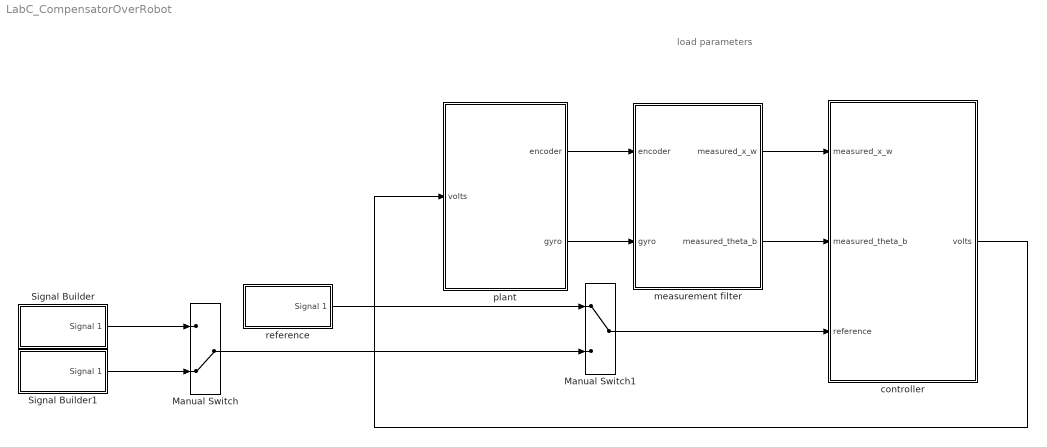
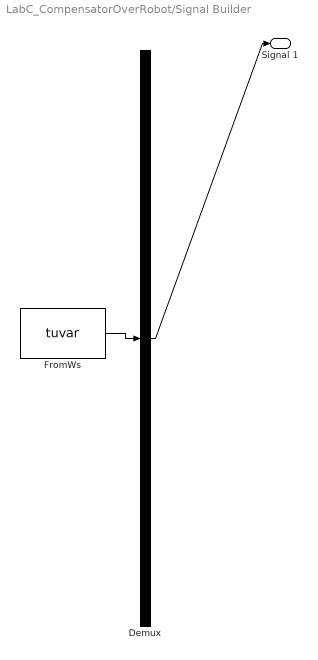
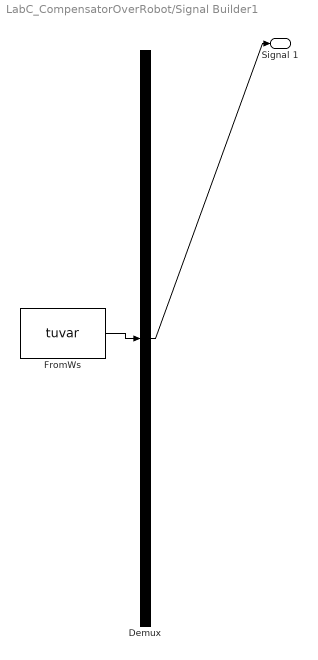
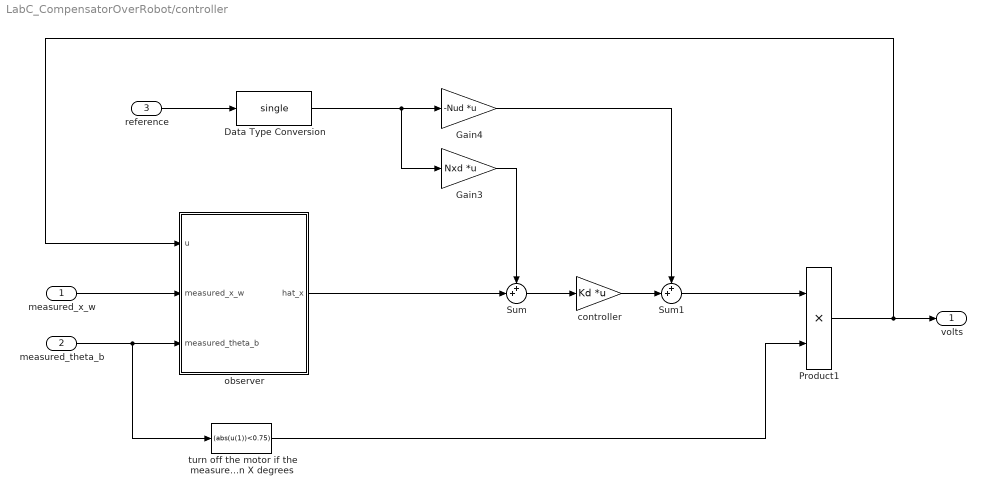
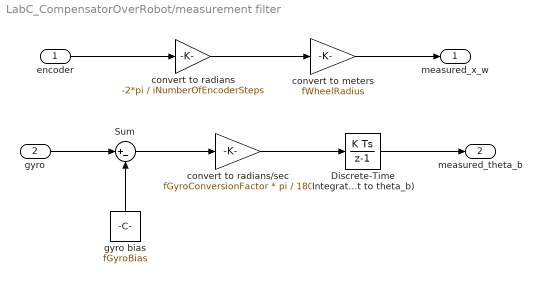
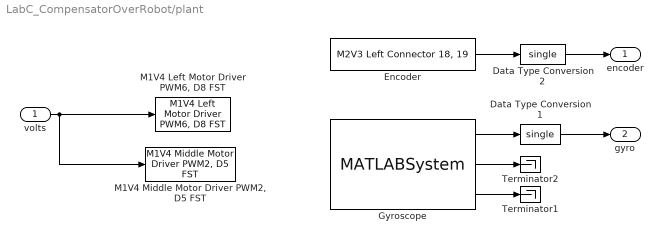
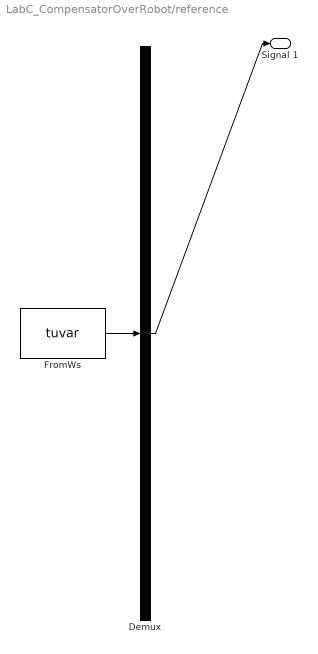
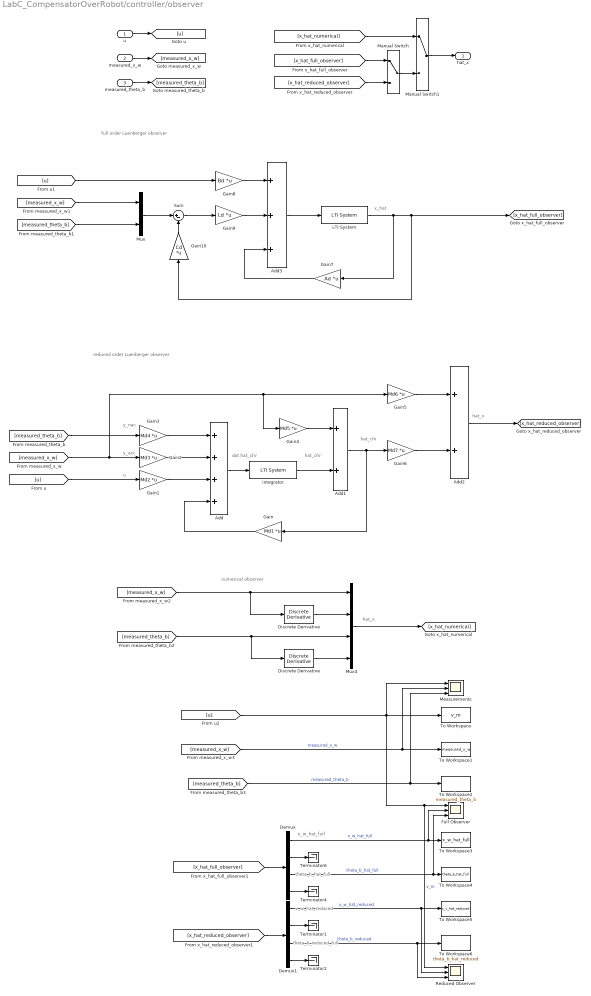
/*
 * Academic License - for use in teaching, academic research, and meeting
 * course requirements at degree granting institutions only.  Not for
 * government, commercial, or other organizational use.
 *
 * File: LabC_CompensatorOverRobot.c
 *
 * Code generated for Simulink model 'LabC_CompensatorOverRobot'.
 *
 * Model version                  : 1.720
 * Simulink Coder version         : 9.2 (R2019b) 18-Jul-2019
 * C/C++ source code generated on : Wed Dec  4 23:57:09 2019
 *
 * Target selection: ert.tlc
 * Embedded hardware selection: Atmel->AVR
 * Code generation objectives: Unspecified
 * Validation result: Not run
 */

#include "LabC_CompensatorOverRobot.h"
#include "LabC_CompensatorOverRobot_private.h"
#include "LabC_CompensatorOverRobot_dt.h"

/* Block signals (default storage) */
BlockIO_LabC_CompensatorOverRob LabC_CompensatorOverRobot_B;

/* Block states (default storage) */
D_Work_LabC_CompensatorOverRobo LabC_CompensatorOverRobot_DWork;

/* Real-time model */
RT_MODEL_LabC_CompensatorOverRo LabC_CompensatorOverRobot_M_;
RT_MODEL_LabC_CompensatorOverRo *const LabC_CompensatorOverRobot_M =
  &LabC_CompensatorOverRobot_M_;

/* Forward declaration for local functions */
static void matlabCodegenHandle_matlabCod_o(Encoder_arduino_LabC_Compensato *obj);
static void matlabCodegenHandle_matlabCodeg(soMPU6050Gyro_LabC_CompensatorO *obj);
static void matlabCodegenHandle_matlabC_o21(codertarget_arduinobase_blocks_ *obj);
static void LabC_Compens_SystemCore_release(codertarget_arduinobase_interna *obj);
static void LabC_Compe_SystemCore_delete_o2(codertarget_arduinobase_interna *obj);
static void matlabCodegenHandle_matlabCo_o2(codertarget_arduinobase_interna *obj);
static void arduino_PWMOutput_set_pinNumber(codertarget_arduinobase_interna *obj,
  e_codertarget_arduinobase_inter *iobj_0);
static void arduino_PWMOutput_set_pinNumb_o(codertarget_arduinobase_interna *obj,
  e_codertarget_arduinobase_inter *iobj_0);
static void matlabCodegenHandle_matlabCod_o(Encoder_arduino_LabC_Compensato *obj)
{
  if (!obj->matlabCodegenIsDeleted) {
    obj->matlabCodegenIsDeleted = true;
  }
}

static void matlabCodegenHandle_matlabCodeg(soMPU6050Gyro_LabC_CompensatorO *obj)
{
  if (!obj->matlabCodegenIsDeleted) {
    obj->matlabCodegenIsDeleted = true;
  }
}

static void matlabCodegenHandle_matlabC_o21(codertarget_arduinobase_blocks_ *obj)
{
  if (!obj->matlabCodegenIsDeleted) {
    obj->matlabCodegenIsDeleted = true;
  }
}

static void LabC_Compens_SystemCore_release(codertarget_arduinobase_interna *obj)
{
  if ((obj->isInitialized == 1L) && obj->isSetupComplete) {
    obj->MW_PWM_HANDLE = MW_PWM_GetHandle(obj->PinPWM);
    MW_PWM_SetDutyCycle(obj->MW_PWM_HANDLE, 0);
    obj->MW_PWM_HANDLE = MW_PWM_GetHandle(obj->PinPWM);
    MW_PWM_Close(obj->MW_PWM_HANDLE);
  }
}

static void LabC_Compe_SystemCore_delete_o2(codertarget_arduinobase_interna *obj)
{
  LabC_Compens_SystemCore_release(obj);
}

static void matlabCodegenHandle_matlabCo_o2(codertarget_arduinobase_interna *obj)
{
  if (!obj->matlabCodegenIsDeleted) {
    obj->matlabCodegenIsDeleted = true;
    LabC_Compe_SystemCore_delete_o2(obj);
  }
}

static void arduino_PWMOutput_set_pinNumber(codertarget_arduinobase_interna *obj,
  e_codertarget_arduinobase_inter *iobj_0)
{
  iobj_0->AvailablePwmPinNames.f1 = '2';
  iobj_0->AvailablePwmPinNames.f2 = '3';
  iobj_0->AvailablePwmPinNames.f3 = '4';
  iobj_0->AvailablePwmPinNames.f4 = '5';
  iobj_0->AvailablePwmPinNames.f5 = '6';
  iobj_0->AvailablePwmPinNames.f6 = '7';
  iobj_0->AvailablePwmPinNames.f7 = '8';
  iobj_0->AvailablePwmPinNames.f8 = '9';
  iobj_0->AvailablePwmPinNames.f9[0] = '1';
  iobj_0->AvailablePwmPinNames.f9[1] = '0';
  iobj_0->AvailablePwmPinNames.f10[0] = '1';
  iobj_0->AvailablePwmPinNames.f10[1] = '1';
  iobj_0->AvailablePwmPinNames.f11[0] = '1';
  iobj_0->AvailablePwmPinNames.f11[1] = '2';
  iobj_0->AvailablePwmPinNames.f12[0] = '1';
  iobj_0->AvailablePwmPinNames.f12[1] = '3';
  obj->Hw = iobj_0;
  obj->PinPWM = 6UL;
}

static void arduino_PWMOutput_set_pinNumb_o(codertarget_arduinobase_interna *obj,
  e_codertarget_arduinobase_inter *iobj_0)
{
  iobj_0->AvailablePwmPinNames.f1 = '2';
  iobj_0->AvailablePwmPinNames.f2 = '3';
  iobj_0->AvailablePwmPinNames.f3 = '4';
  iobj_0->AvailablePwmPinNames.f4 = '5';
  iobj_0->AvailablePwmPinNames.f5 = '6';
  iobj_0->AvailablePwmPinNames.f6 = '7';
  iobj_0->AvailablePwmPinNames.f7 = '8';
  iobj_0->AvailablePwmPinNames.f8 = '9';
  iobj_0->AvailablePwmPinNames.f9[0] = '1';
  iobj_0->AvailablePwmPinNames.f9[1] = '0';
  iobj_0->AvailablePwmPinNames.f10[0] = '1';
  iobj_0->AvailablePwmPinNames.f10[1] = '1';
  iobj_0->AvailablePwmPinNames.f11[0] = '1';
  iobj_0->AvailablePwmPinNames.f11[1] = '2';
  iobj_0->AvailablePwmPinNames.f12[0] = '1';
  iobj_0->AvailablePwmPinNames.f12[1] = '3';
  obj->Hw = iobj_0;
  obj->PinPWM = 2UL;
}

/* Model step function */
void LabC_CompensatorOverRobot_step(void)
{
  /* local block i/o variables */
  real32_T rtb_TSamp;
  real32_T rtb_TSamp_n;
  real32_T rtb_converttoradianssec;
  real32_T rtb_Internal_4_4;
  real32_T rtb_Internal_3_3;
  real32_T rtb_Internal_3_2;
  real32_T rtb_DataTypeConversion1;
  codertarget_arduinobase_interna *obj;
  int16_T i;
  real32_T rtb_Gain8_idx_3;
  real32_T rtb_Add1_idx_0;
  real32_T rtb_Add1_idx_1;
  real32_T rtb_Add1_idx_2;
  real32_T Sum2_tmp;
  real32_T tmp;

  /* FromWorkspace: '<S1>/FromWs' */
  {
    real_T *pDataValues = (real_T *)
      LabC_CompensatorOverRobot_DWork.FromWs_PWORK.DataPtr;
    real_T *pTimeValues = (real_T *)
      LabC_CompensatorOverRobot_DWork.FromWs_PWORK.TimePtr;
    int_T currTimeIndex = LabC_CompensatorOverRobot_DWork.FromWs_IWORK.PrevIndex;
    real_T t = LabC_CompensatorOverRobot_M->Timing.t[0];

    /* Get index */
    if (t <= pTimeValues[0]) {
      currTimeIndex = 0;
    } else if (t >= pTimeValues[7]) {
      currTimeIndex = 6;
    } else {
      if (t < pTimeValues[currTimeIndex]) {
        while (t < pTimeValues[currTimeIndex]) {
          currTimeIndex--;
        }
      } else {
        while (t >= pTimeValues[currTimeIndex + 1]) {
          currTimeIndex++;
        }
      }
    }

    LabC_CompensatorOverRobot_DWork.FromWs_IWORK.PrevIndex = currTimeIndex;

    /* Post output */
    {
      real_T t1 = pTimeValues[currTimeIndex];
      real_T t2 = pTimeValues[currTimeIndex + 1];
      if (t1 == t2) {
        if (t < t1) {
          LabC_CompensatorOverRobot_B.FromWs = pDataValues[currTimeIndex];
        } else {
          LabC_CompensatorOverRobot_B.FromWs = pDataValues[currTimeIndex + 1];
        }
      } else {
        real_T f1 = (t2 - t) / (t2 - t1);
        real_T f2 = 1.0 - f1;
        real_T d1;
        real_T d2;
        int_T TimeIndex= currTimeIndex;
        d1 = pDataValues[TimeIndex];
        d2 = pDataValues[TimeIndex + 1];
        LabC_CompensatorOverRobot_B.FromWs = (real_T) rtInterpolate(d1, d2, f1,
          f2);
        pDataValues += 8;
      }
    }
  }

  /* FromWorkspace: '<S2>/FromWs' */
  {
    real_T *pDataValues = (real_T *)
      LabC_CompensatorOverRobot_DWork.FromWs_PWORK_c.DataPtr;
    real_T *pTimeValues = (real_T *)
      LabC_CompensatorOverRobot_DWork.FromWs_PWORK_c.TimePtr;
    int_T currTimeIndex =
      LabC_CompensatorOverRobot_DWork.FromWs_IWORK_l.PrevIndex;
    real_T t = LabC_CompensatorOverRobot_M->Timing.t[0];

    /* Get index */
    if (t <= pTimeValues[0]) {
      currTimeIndex = 0;
    } else if (t >= pTimeValues[7]) {
      currTimeIndex = 6;
    } else {
      if (t < pTimeValues[currTimeIndex]) {
        while (t < pTimeValues[currTimeIndex]) {
          currTimeIndex--;
        }
      } else {
        while (t >= pTimeValues[currTimeIndex + 1]) {
          currTimeIndex++;
        }
      }
    }

    LabC_CompensatorOverRobot_DWork.FromWs_IWORK_l.PrevIndex = currTimeIndex;

    /* Post output */
    {
      real_T t1 = pTimeValues[currTimeIndex];
      real_T t2 = pTimeValues[currTimeIndex + 1];
      if (t1 == t2) {
        if (t < t1) {
          LabC_CompensatorOverRobot_B.FromWs_p = pDataValues[currTimeIndex];
        } else {
          LabC_CompensatorOverRobot_B.FromWs_p = pDataValues[currTimeIndex + 1];
        }
      } else {
        real_T f1 = (t2 - t) / (t2 - t1);
        real_T f2 = 1.0 - f1;
        real_T d1;
        real_T d2;
        int_T TimeIndex= currTimeIndex;
        d1 = pDataValues[TimeIndex];
        d2 = pDataValues[TimeIndex + 1];
        LabC_CompensatorOverRobot_B.FromWs_p = (real_T) rtInterpolate(d1, d2, f1,
          f2);
        pDataValues += 8;
      }
    }
  }

  /* FromWorkspace: '<S6>/FromWs' */
  {
    real_T *pDataValues = (real_T *)
      LabC_CompensatorOverRobot_DWork.FromWs_PWORK_a.DataPtr;
    real_T *pTimeValues = (real_T *)
      LabC_CompensatorOverRobot_DWork.FromWs_PWORK_a.TimePtr;
    int_T currTimeIndex =
      LabC_CompensatorOverRobot_DWork.FromWs_IWORK_o.PrevIndex;
    real_T t = LabC_CompensatorOverRobot_M->Timing.t[0];

    /* Get index */
    if (t <= pTimeValues[0]) {
      currTimeIndex = 0;
    } else if (t >= pTimeValues[5]) {
      currTimeIndex = 4;
    } else {
      if (t < pTimeValues[currTimeIndex]) {
        while (t < pTimeValues[currTimeIndex]) {
          currTimeIndex--;
        }
      } else {
        while (t >= pTimeValues[currTimeIndex + 1]) {
          currTimeIndex++;
        }
      }
    }

    LabC_CompensatorOverRobot_DWork.FromWs_IWORK_o.PrevIndex = currTimeIndex;

    /* Post output */
    {
      real_T t1 = pTimeValues[currTimeIndex];
      real_T t2 = pTimeValues[currTimeIndex + 1];
      if (t1 == t2) {
        if (t < t1) {
          LabC_CompensatorOverRobot_B.ManualSwitch1 = pDataValues[currTimeIndex];
        } else {
          LabC_CompensatorOverRobot_B.ManualSwitch1 = pDataValues[currTimeIndex
            + 1];
        }
      } else {
        real_T f1 = (t2 - t) / (t2 - t1);
        real_T f2 = 1.0 - f1;
        real_T d1;
        real_T d2;
        int_T TimeIndex= currTimeIndex;
        d1 = pDataValues[TimeIndex];
        d2 = pDataValues[TimeIndex + 1];
        LabC_CompensatorOverRobot_B.ManualSwitch1 = (real_T) rtInterpolate(d1,
          d2, f1, f2);
        pDataValues += 6;
      }
    }
  }

  /* ManualSwitch: '<Root>/Manual Switch1' */
  if (LabC_CompensatorOverRobot_P.ManualSwitch1_CurrentSetting != 1) {
    /* ManualSwitch: '<Root>/Manual Switch' */
    if (LabC_CompensatorOverRobot_P.ManualSwitch_CurrentSetting == 1) {
      LabC_CompensatorOverRobot_B.ManualSwitch1 =
        LabC_CompensatorOverRobot_B.FromWs;
    } else {
      LabC_CompensatorOverRobot_B.ManualSwitch1 =
        LabC_CompensatorOverRobot_B.FromWs_p;
    }

    /* End of ManualSwitch: '<Root>/Manual Switch' */
  }

  /* End of ManualSwitch: '<Root>/Manual Switch1' */

  /* Gain: '<S3>/Gain3' incorporates:
   *  DataTypeConversion: '<S3>/Data Type Conversion'
   */
  LabC_CompensatorOverRobot_B.Gain3 = LabC_CompensatorOverRobot_P.Nxd *
    (real32_T)LabC_CompensatorOverRobot_B.ManualSwitch1;

  /* MATLABSystem: '<S5>/Encoder' */
  LabC_CompensatorOverRobot_B.rtb_Encoder_m = enc_output(1.0);

  /* Gain: '<S4>/convert to meters' incorporates:
   *  DataTypeConversion: '<S5>/Data Type  Conversion2'
   *  Gain: '<S4>/convert to  radians'
   *  MATLABSystem: '<S5>/Encoder'
   */
  LabC_CompensatorOverRobot_B.converttometers =
    LabC_CompensatorOverRobot_P.converttoradians_Gain * (real32_T)
    LabC_CompensatorOverRobot_B.rtb_Encoder_m *
    LabC_CompensatorOverRobot_P.fWheelRadius;

  /* SampleTimeMath: '<S8>/TSamp'
   *
   * About '<S8>/TSamp':
   *  y = u * K where K = 1 / ( w * Ts )
   */
  rtb_TSamp = LabC_CompensatorOverRobot_B.converttometers *
    LabC_CompensatorOverRobot_P.TSamp_WtEt;

  /* DiscreteIntegrator: '<S4>/Discrete-Time  Integrator (convert from theta_b_dot to theta_b)' */
  LabC_CompensatorOverRobot_B.DiscreteTimeIntegratorconvertfr =
    LabC_CompensatorOverRobot_DWork.DiscreteTimeIntegratorconvertfr;

  /* SampleTimeMath: '<S9>/TSamp'
   *
   * About '<S9>/TSamp':
   *  y = u * K where K = 1 / ( w * Ts )
   */
  rtb_TSamp_n = LabC_CompensatorOverRobot_B.DiscreteTimeIntegratorconvertfr *
    LabC_CompensatorOverRobot_P.TSamp_WtEt_j;

  /* DiscreteStateSpace: '<S10>/Internal_1_1' */
  {
    rtb_Internal_4_4 = LabC_CompensatorOverRobot_P.Internal_1_1_C*
      LabC_CompensatorOverRobot_DWork.Internal_1_1_DSTATE;
  }

  /* DiscreteStateSpace: '<S10>/Internal_1_2' */
  {
    rtb_Internal_3_3 = 0.0;
  }

  /* DiscreteStateSpace: '<S10>/Internal_1_3' */
  {
    rtb_Internal_3_2 = 0.0;
  }

  /* DiscreteStateSpace: '<S10>/Internal_1_4' */
  {
    rtb_DataTypeConversion1 = 0.0;
  }

  /* Sum: '<S10>/Sum1' */
  LabC_CompensatorOverRobot_B.Sum1 = ((rtb_Internal_4_4 + rtb_Internal_3_3) +
    rtb_Internal_3_2) + rtb_DataTypeConversion1;

  /* DiscreteStateSpace: '<S10>/Internal_2_1' */
  {
    rtb_DataTypeConversion1 = 0.0;
  }

  /* DiscreteStateSpace: '<S10>/Internal_2_2' */
  {
    rtb_Internal_3_2 = LabC_CompensatorOverRobot_P.Internal_2_2_C*
      LabC_CompensatorOverRobot_DWork.Internal_2_2_DSTATE;
  }

  /* DiscreteStateSpace: '<S10>/Internal_2_3' */
  {
    rtb_Internal_3_3 = 0.0;
  }

  /* DiscreteStateSpace: '<S10>/Internal_2_4' */
  {
    rtb_Internal_4_4 = 0.0;
  }

  /* Sum: '<S10>/Sum2' */
  Sum2_tmp = ((rtb_DataTypeConversion1 + rtb_Internal_3_2) + rtb_Internal_3_3) +
    rtb_Internal_4_4;

  /* DiscreteStateSpace: '<S10>/Internal_3_1' */
  {
    rtb_DataTypeConversion1 = 0.0;
  }

  /* DiscreteStateSpace: '<S10>/Internal_3_2' */
  {
    rtb_Internal_3_2 = 0.0;
  }

  /* DiscreteStateSpace: '<S10>/Internal_3_3' */
  {
    rtb_Internal_3_3 = LabC_CompensatorOverRobot_P.Internal_3_3_C*
      LabC_CompensatorOverRobot_DWork.Internal_3_3_DSTATE;
  }

  /* DiscreteStateSpace: '<S10>/Internal_3_4' */
  {
    rtb_Internal_4_4 = 0.0;
  }

  /* Sum: '<S10>/Sum3' */
  LabC_CompensatorOverRobot_B.Sum3 = ((rtb_DataTypeConversion1 +
    rtb_Internal_3_2) + rtb_Internal_3_3) + rtb_Internal_4_4;

  /* DiscreteStateSpace: '<S10>/Internal_4_1' */
  {
    rtb_DataTypeConversion1 = 0.0;
  }

  /* DiscreteStateSpace: '<S10>/Internal_4_2' */
  {
    rtb_Internal_3_2 = 0.0;
  }

  /* DiscreteStateSpace: '<S10>/Internal_4_3' */
  {
    rtb_Internal_3_3 = 0.0;
  }

  /* DiscreteStateSpace: '<S10>/Internal_4_4' */
  {
    rtb_Internal_4_4 = LabC_CompensatorOverRobot_P.Internal_4_4_C*
      LabC_CompensatorOverRobot_DWork.Internal_4_4_DSTATE;
  }

  /* Sum: '<S10>/Sum4' */
  tmp = ((rtb_DataTypeConversion1 + rtb_Internal_3_2) + rtb_Internal_3_3) +
    rtb_Internal_4_4;

  /* DiscreteStateSpace: '<S11>/Internal_1_1' */
  {
    rtb_DataTypeConversion1 = LabC_CompensatorOverRobot_P.Internal_1_1_C_i*
      LabC_CompensatorOverRobot_DWork.Internal_1_1_DSTATE_n;
  }

  /* DiscreteStateSpace: '<S11>/Internal_1_2' */
  {
    rtb_Internal_3_2 = 0.0;
  }

  /* DiscreteStateSpace: '<S11>/Internal_1_3' */
  {
    rtb_Internal_3_3 = 0.0;
  }

  /* Sum: '<S11>/Sum1' */
  rtb_Add1_idx_0 = (rtb_DataTypeConversion1 + rtb_Internal_3_2) +
    rtb_Internal_3_3;

  /* DiscreteStateSpace: '<S11>/Internal_2_1' */
  {
    rtb_DataTypeConversion1 = 0.0;
  }

  /* DiscreteStateSpace: '<S11>/Internal_2_2' */
  {
    rtb_Internal_3_2 = LabC_CompensatorOverRobot_P.Internal_2_2_C_n*
      LabC_CompensatorOverRobot_DWork.Internal_2_2_DSTATE_o;
  }

  /* DiscreteStateSpace: '<S11>/Internal_2_3' */
  {
    rtb_Internal_3_3 = 0.0;
  }

  /* Sum: '<S11>/Sum2' */
  rtb_Add1_idx_1 = (rtb_DataTypeConversion1 + rtb_Internal_3_2) +
    rtb_Internal_3_3;

  /* DiscreteStateSpace: '<S11>/Internal_3_1' */
  {
    rtb_DataTypeConversion1 = 0.0;
  }

  /* DiscreteStateSpace: '<S11>/Internal_3_2' */
  {
    rtb_Internal_3_2 = 0.0;
  }

  /* DiscreteStateSpace: '<S11>/Internal_3_3' */
  {
    rtb_Internal_3_3 = LabC_CompensatorOverRobot_P.Internal_3_3_C_i*
      LabC_CompensatorOverRobot_DWork.Internal_3_3_DSTATE_o;
  }

  /* Sum: '<S7>/Add1' incorporates:
   *  Gain: '<S7>/Gain4'
   *  Sum: '<S11>/Sum1'
   *  Sum: '<S11>/Sum2'
   *  Sum: '<S11>/Sum3'
   */
  rtb_Add1_idx_0 += LabC_CompensatorOverRobot_P.Md5[0] *
    LabC_CompensatorOverRobot_B.converttometers;
  rtb_Add1_idx_1 += LabC_CompensatorOverRobot_P.Md5[1] *
    LabC_CompensatorOverRobot_B.converttometers;
  rtb_Add1_idx_2 = ((rtb_DataTypeConversion1 + rtb_Internal_3_2) +
                    rtb_Internal_3_3) + LabC_CompensatorOverRobot_P.Md5[2] *
    LabC_CompensatorOverRobot_B.converttometers;

  /* Sum: '<S7>/Add2' incorporates:
   *  Gain: '<S7>/Gain5'
   *  Gain: '<S7>/Gain6'
   */
  for (i = 0; i < 4; i++) {
    LabC_CompensatorOverRobot_B.Add2[i] = ((LabC_CompensatorOverRobot_P.Md7[i +
      4] * rtb_Add1_idx_1 + LabC_CompensatorOverRobot_P.Md7[i] * rtb_Add1_idx_0)
      + LabC_CompensatorOverRobot_P.Md7[i + 8] * rtb_Add1_idx_2) +
      LabC_CompensatorOverRobot_P.Md6[i] *
      LabC_CompensatorOverRobot_B.converttometers;
  }

  /* End of Sum: '<S7>/Add2' */

  /* ManualSwitch: '<S7>/Manual Switch1' incorporates:
   *  ManualSwitch: '<S7>/Manual Switch'
   *  Sum: '<S8>/Diff'
   *  Sum: '<S9>/Diff'
   *  UnitDelay: '<S8>/UD'
   *  UnitDelay: '<S9>/UD'
   *
   * Block description for '<S8>/Diff':
   *
   *  Add in CPU
   *
   * Block description for '<S9>/Diff':
   *
   *  Add in CPU
   *
   * Block description for '<S8>/UD':
   *
   *  Store in Global RAM
   *
   * Block description for '<S9>/UD':
   *
   *  Store in Global RAM
   */
  if (LabC_CompensatorOverRobot_P.ManualSwitch1_CurrentSetting_g == 1) {
    LabC_CompensatorOverRobot_B.rtb_Gain8_idx_0 =
      LabC_CompensatorOverRobot_B.converttometers;
    LabC_CompensatorOverRobot_B.rtb_Gain8_idx_1 = rtb_TSamp -
      LabC_CompensatorOverRobot_DWork.UD_DSTATE;
    LabC_CompensatorOverRobot_B.rtb_Gain8_idx_2 =
      LabC_CompensatorOverRobot_B.DiscreteTimeIntegratorconvertfr;
    rtb_Gain8_idx_3 = rtb_TSamp_n - LabC_CompensatorOverRobot_DWork.UD_DSTATE_o;
  } else if (LabC_CompensatorOverRobot_P.ManualSwitch_CurrentSetting_e == 1) {
    /* ManualSwitch: '<S7>/Manual Switch' incorporates:
     *  Sum: '<S10>/Sum2'
     *  Sum: '<S10>/Sum4'
     */
    LabC_CompensatorOverRobot_B.rtb_Gain8_idx_0 =
      LabC_CompensatorOverRobot_B.Sum1;
    LabC_CompensatorOverRobot_B.rtb_Gain8_idx_1 = Sum2_tmp;
    LabC_CompensatorOverRobot_B.rtb_Gain8_idx_2 =
      LabC_CompensatorOverRobot_B.Sum3;
    rtb_Gain8_idx_3 = tmp;
  } else {
    LabC_CompensatorOverRobot_B.rtb_Gain8_idx_0 =
      LabC_CompensatorOverRobot_B.Add2[0];
    LabC_CompensatorOverRobot_B.rtb_Gain8_idx_1 =
      LabC_CompensatorOverRobot_B.Add2[1];
    LabC_CompensatorOverRobot_B.rtb_Gain8_idx_2 =
      LabC_CompensatorOverRobot_B.Add2[2];
    rtb_Gain8_idx_3 = LabC_CompensatorOverRobot_B.Add2[3];
  }

  /* End of ManualSwitch: '<S7>/Manual Switch1' */

  /* Product: '<S3>/Product1' incorporates:
   *  DataTypeConversion: '<S3>/Data Type Conversion'
   *  Fcn: '<S3>/turn off the motor if the measured angle is greater than X degrees'
   *  Gain: '<S3>/Gain4'
   *  Gain: '<S3>/controller'
   *  Sum: '<S3>/Sum'
   *  Sum: '<S3>/Sum1'
   */
  LabC_CompensatorOverRobot_B.Product1 = (((((LabC_CompensatorOverRobot_B.Gain3
    + LabC_CompensatorOverRobot_B.rtb_Gain8_idx_0) *
    LabC_CompensatorOverRobot_P.Kd[0] + (LabC_CompensatorOverRobot_B.Gain3 +
    LabC_CompensatorOverRobot_B.rtb_Gain8_idx_1) *
    LabC_CompensatorOverRobot_P.Kd[1]) + (LabC_CompensatorOverRobot_B.Gain3 +
    LabC_CompensatorOverRobot_B.rtb_Gain8_idx_2) *
    LabC_CompensatorOverRobot_P.Kd[2]) + (LabC_CompensatorOverRobot_B.Gain3 +
    rtb_Gain8_idx_3) * LabC_CompensatorOverRobot_P.Kd[3]) +
    LabC_CompensatorOverRobot_P.Gain4_Gain * (real32_T)
    LabC_CompensatorOverRobot_B.ManualSwitch1) * (real32_T)((real32_T)fabs
    (LabC_CompensatorOverRobot_B.DiscreteTimeIntegratorconvertfr) < 0.75F);

  /* Sum: '<S7>/Add' incorporates:
   *  Gain: '<S7>/Gain'
   *  Gain: '<S7>/Gain1'
   *  Gain: '<S7>/Gain2'
   *  Gain: '<S7>/Gain3'
   */
  for (i = 0; i < 3; i++) {
    LabC_CompensatorOverRobot_B.Add[i] = ((LabC_CompensatorOverRobot_P.Md1[i + 3]
      * rtb_Add1_idx_1 + LabC_CompensatorOverRobot_P.Md1[i] * rtb_Add1_idx_0) +
      LabC_CompensatorOverRobot_P.Md1[i + 6] * rtb_Add1_idx_2) +
      ((LabC_CompensatorOverRobot_P.Md4[i] *
        LabC_CompensatorOverRobot_B.DiscreteTimeIntegratorconvertfr +
        LabC_CompensatorOverRobot_P.Md3[i] *
        LabC_CompensatorOverRobot_B.converttometers) +
       LabC_CompensatorOverRobot_P.Md2[i] * LabC_CompensatorOverRobot_B.Product1);
  }

  /* End of Sum: '<S7>/Add' */

  /* Gain: '<S7>/Gain10' incorporates:
   *  SignalConversion generated from: '<S7>/Gain10'
   *  Sum: '<S10>/Sum2'
   *  Sum: '<S10>/Sum4'
   */
  for (i = 0; i < 2; i++) {
    LabC_CompensatorOverRobot_B.Gain3 = LabC_CompensatorOverRobot_P.Cd[i + 6] *
      tmp + (LabC_CompensatorOverRobot_P.Cd[i + 4] *
             LabC_CompensatorOverRobot_B.Sum3 +
             (LabC_CompensatorOverRobot_P.Cd[i + 2] * Sum2_tmp +
              LabC_CompensatorOverRobot_P.Cd[i] *
              LabC_CompensatorOverRobot_B.Sum1));
    LabC_CompensatorOverRobot_B.Gain10[i] = LabC_CompensatorOverRobot_B.Gain3;
  }

  /* End of Gain: '<S7>/Gain10' */

  /* Sum: '<S7>/Sum' */
  LabC_CompensatorOverRobot_B.Gain3 =
    LabC_CompensatorOverRobot_B.converttometers -
    LabC_CompensatorOverRobot_B.Gain10[0];
  rtb_Add1_idx_1 = LabC_CompensatorOverRobot_B.DiscreteTimeIntegratorconvertfr -
    LabC_CompensatorOverRobot_B.Gain10[1];
  for (i = 0; i < 4; i++) {
    /* Gain: '<S7>/Gain7' incorporates:
     *  SignalConversion generated from: '<S7>/Gain10'
     *  Sum: '<S10>/Sum2'
     *  Sum: '<S10>/Sum4'
     */
    rtb_Add1_idx_0 = LabC_CompensatorOverRobot_P.Ad[i + 12] * tmp +
      (LabC_CompensatorOverRobot_P.Ad[i + 8] * LabC_CompensatorOverRobot_B.Sum3
       + (LabC_CompensatorOverRobot_P.Ad[i + 4] * Sum2_tmp +
          LabC_CompensatorOverRobot_P.Ad[i] * LabC_CompensatorOverRobot_B.Sum1));

    /* Sum: '<S7>/Add3' incorporates:
     *  Gain: '<S7>/Gain8'
     *  Gain: '<S7>/Gain9'
     */
    LabC_CompensatorOverRobot_B.Add3[i] = (LabC_CompensatorOverRobot_P.Bd[i] *
      LabC_CompensatorOverRobot_B.Product1 + (LabC_CompensatorOverRobot_P.Ld[i +
      4] * rtb_Add1_idx_1 + LabC_CompensatorOverRobot_P.Ld[i] *
      LabC_CompensatorOverRobot_B.Gain3)) + rtb_Add1_idx_0;
  }

  /* MATLABSystem: '<S5>/Gyroscope' */
  MPU6050Gyro_Read(LabC_CompensatorOverRobot_B.out);

  /* DataTypeConversion: '<S5>/Data Type  Conversion1' incorporates:
   *  MATLABSystem: '<S5>/Gyroscope'
   */
  rtb_DataTypeConversion1 = LabC_CompensatorOverRobot_B.out[0];

  /* Gain: '<S4>/convert to radians//sec' incorporates:
   *  Constant: '<S4>/gyro bias'
   *  Sum: '<S4>/Sum'
   */
  rtb_converttoradianssec = (rtb_DataTypeConversion1 -
    LabC_CompensatorOverRobot_P.fGyroBias) *
    LabC_CompensatorOverRobot_P.converttoradianssec_Gain;

  /* MATLABSystem: '<S41>/Digital Output1' incorporates:
   *  Constant: '<S43>/Constant'
   *  RelationalOperator: '<S43>/Compare'
   */
  writeDigitalPin(8, (uint8_T)(LabC_CompensatorOverRobot_B.Product1 <
    LabC_CompensatorOverRobot_P.Constant_Value));

  /* MATLABSystem: '<S41>/PWM' */
  obj = &LabC_CompensatorOverRobot_DWork.obj_o;
  obj->MW_PWM_HANDLE = MW_PWM_GetHandle
    (LabC_CompensatorOverRobot_DWork.obj_o.PinPWM);

  /* Saturate: '<S41>/Saturation -Vsupply to Vsupply' */
  if (LabC_CompensatorOverRobot_B.Product1 >
      LabC_CompensatorOverRobot_P.M1V4LeftMotorDriverPWM6D8FST_Vs) {
    tmp = LabC_CompensatorOverRobot_P.M1V4LeftMotorDriverPWM6D8FST_Vs;
  } else if (LabC_CompensatorOverRobot_B.Product1 <
             LabC_CompensatorOverRobot_P.SaturationVsupplytoVsupply_Lowe) {
    tmp = LabC_CompensatorOverRobot_P.SaturationVsupplytoVsupply_Lowe;
  } else {
    tmp = LabC_CompensatorOverRobot_B.Product1;
  }

  /* End of Saturate: '<S41>/Saturation -Vsupply to Vsupply' */

  /* Gain: '<S41>/conversion to dutycycle (convert to uint8, overflow will provide reverse polairty magnitued)' */
  tmp = (real32_T)floor
    (LabC_CompensatorOverRobot_P.conversiontodutycycleconverttou * tmp);
  if (rtIsNaNF(tmp) || rtIsInfF(tmp)) {
    tmp = 0.0F;
  } else {
    tmp = (real32_T)fmod(tmp, 256.0);
  }

  /* MATLABSystem: '<S41>/PWM' incorporates:
   *  Gain: '<S41>/conversion to dutycycle (convert to uint8, overflow will provide reverse polairty magnitued)'
   */
  MW_PWM_SetDutyCycle(LabC_CompensatorOverRobot_DWork.obj_o.MW_PWM_HANDLE,
                      (uint8_T)(tmp < 0.0F ? (int16_T)(uint8_T)-(int8_T)(uint8_T)
    -tmp : (int16_T)(uint8_T)tmp));

  /* MATLABSystem: '<S42>/Digital Output1' incorporates:
   *  Constant: '<S44>/Constant'
   *  RelationalOperator: '<S44>/Compare'
   */
  writeDigitalPin(5, (uint8_T)(LabC_CompensatorOverRobot_B.Product1 <
    LabC_CompensatorOverRobot_P.Constant_Value_n));

  /* MATLABSystem: '<S42>/PWM' */
  obj = &LabC_CompensatorOverRobot_DWork.obj;
  obj->MW_PWM_HANDLE = MW_PWM_GetHandle
    (LabC_CompensatorOverRobot_DWork.obj.PinPWM);

  /* Saturate: '<S42>/Saturation -Vsupply to Vsupply' */
  if (LabC_CompensatorOverRobot_B.Product1 >
      LabC_CompensatorOverRobot_P.M1V4MiddleMotorDriverPWM2D5FST_) {
    tmp = LabC_CompensatorOverRobot_P.M1V4MiddleMotorDriverPWM2D5FST_;
  } else if (LabC_CompensatorOverRobot_B.Product1 <
             LabC_CompensatorOverRobot_P.SaturationVsupplytoVsupply_Lo_g) {
    tmp = LabC_CompensatorOverRobot_P.SaturationVsupplytoVsupply_Lo_g;
  } else {
    tmp = LabC_CompensatorOverRobot_B.Product1;
  }

  /* End of Saturate: '<S42>/Saturation -Vsupply to Vsupply' */

  /* Gain: '<S42>/conversion to dutycycle (convert to uint8, overflow will provide reverse polairty magnitued)' */
  tmp = (real32_T)floor
    (LabC_CompensatorOverRobot_P.conversiontodutycycleconvertt_d * tmp);
  if (rtIsNaNF(tmp) || rtIsInfF(tmp)) {
    tmp = 0.0F;
  } else {
    tmp = (real32_T)fmod(tmp, 256.0);
  }

  /* MATLABSystem: '<S42>/PWM' incorporates:
   *  Gain: '<S42>/conversion to dutycycle (convert to uint8, overflow will provide reverse polairty magnitued)'
   */
  MW_PWM_SetDutyCycle(LabC_CompensatorOverRobot_DWork.obj.MW_PWM_HANDLE,
                      (uint8_T)(tmp < 0.0F ? (int16_T)(uint8_T)-(int8_T)(uint8_T)
    -tmp : (int16_T)(uint8_T)tmp));

  /* Update for UnitDelay: '<S8>/UD'
   *
   * Block description for '<S8>/UD':
   *
   *  Store in Global RAM
   */
  LabC_CompensatorOverRobot_DWork.UD_DSTATE = rtb_TSamp;

  /* Update for DiscreteIntegrator: '<S4>/Discrete-Time  Integrator (convert from theta_b_dot to theta_b)' */
  LabC_CompensatorOverRobot_DWork.DiscreteTimeIntegratorconvertfr +=
    LabC_CompensatorOverRobot_P.DiscreteTimeIntegratorconvertfr *
    rtb_converttoradianssec;

  /* Update for UnitDelay: '<S9>/UD'
   *
   * Block description for '<S9>/UD':
   *
   *  Store in Global RAM
   */
  LabC_CompensatorOverRobot_DWork.UD_DSTATE_o = rtb_TSamp_n;

  /* Update for DiscreteStateSpace: '<S10>/Internal_1_1' */
  {
    LabC_CompensatorOverRobot_DWork.Internal_1_1_DSTATE =
      LabC_CompensatorOverRobot_B.Add3[0] +
      (LabC_CompensatorOverRobot_P.Internal_1_1_A)*
      LabC_CompensatorOverRobot_DWork.Internal_1_1_DSTATE;
  }

  /* Update for DiscreteStateSpace: '<S10>/Internal_2_2' */
  {
    LabC_CompensatorOverRobot_DWork.Internal_2_2_DSTATE =
      LabC_CompensatorOverRobot_B.Add3[1] +
      (LabC_CompensatorOverRobot_P.Internal_2_2_A)*
      LabC_CompensatorOverRobot_DWork.Internal_2_2_DSTATE;
  }

  /* Update for DiscreteStateSpace: '<S10>/Internal_3_3' */
  {
    LabC_CompensatorOverRobot_DWork.Internal_3_3_DSTATE =
      LabC_CompensatorOverRobot_B.Add3[2] +
      (LabC_CompensatorOverRobot_P.Internal_3_3_A)*
      LabC_CompensatorOverRobot_DWork.Internal_3_3_DSTATE;
  }

  /* Update for DiscreteStateSpace: '<S10>/Internal_4_4' */
  {
    LabC_CompensatorOverRobot_DWork.Internal_4_4_DSTATE =
      LabC_CompensatorOverRobot_B.Add3[3] +
      (LabC_CompensatorOverRobot_P.Internal_4_4_A)*
      LabC_CompensatorOverRobot_DWork.Internal_4_4_DSTATE;
  }

  /* Update for DiscreteStateSpace: '<S11>/Internal_1_1' */
  {
    LabC_CompensatorOverRobot_DWork.Internal_1_1_DSTATE_n =
      LabC_CompensatorOverRobot_B.Add[0] +
      (LabC_CompensatorOverRobot_P.Internal_1_1_A_e)*
      LabC_CompensatorOverRobot_DWork.Internal_1_1_DSTATE_n;
  }

  /* Update for DiscreteStateSpace: '<S11>/Internal_2_2' */
  {
    LabC_CompensatorOverRobot_DWork.Internal_2_2_DSTATE_o =
      LabC_CompensatorOverRobot_B.Add[1] +
      (LabC_CompensatorOverRobot_P.Internal_2_2_A_k)*
      LabC_CompensatorOverRobot_DWork.Internal_2_2_DSTATE_o;
  }

  /* Update for DiscreteStateSpace: '<S11>/Internal_3_3' */
  {
    LabC_CompensatorOverRobot_DWork.Internal_3_3_DSTATE_o =
      LabC_CompensatorOverRobot_B.Add[2] +
      (LabC_CompensatorOverRobot_P.Internal_3_3_A_g)*
      LabC_CompensatorOverRobot_DWork.Internal_3_3_DSTATE_o;
  }

  /* External mode */
  rtExtModeUploadCheckTrigger(2);

  {                                    /* Sample time: [0.0s, 0.0s] */
    rtExtModeUpload(0, (real_T)LabC_CompensatorOverRobot_M->Timing.t[0]);
  }

  {                                    /* Sample time: [0.02s, 0.0s] */
    rtExtModeUpload(1, (real_T)((LabC_CompensatorOverRobot_M->Timing.clockTick1)
      * 0.02));
  }

  /* signal main to stop simulation */
  {                                    /* Sample time: [0.0s, 0.0s] */
    if ((rtmGetTFinal(LabC_CompensatorOverRobot_M)!=-1) &&
        !((rtmGetTFinal(LabC_CompensatorOverRobot_M)-
           LabC_CompensatorOverRobot_M->Timing.t[0]) >
          LabC_CompensatorOverRobot_M->Timing.t[0] * (DBL_EPSILON))) {
      rtmSetErrorStatus(LabC_CompensatorOverRobot_M, "Simulation finished");
    }

    if (rtmGetStopRequested(LabC_CompensatorOverRobot_M)) {
      rtmSetErrorStatus(LabC_CompensatorOverRobot_M, "Simulation finished");
    }
  }

  /* Update absolute time for base rate */
  /* The "clockTick0" counts the number of times the code of this task has
   * been executed. The absolute time is the multiplication of "clockTick0"
   * and "Timing.stepSize0". Size of "clockTick0" ensures timer will not
   * overflow during the application lifespan selected.
   */
  LabC_CompensatorOverRobot_M->Timing.t[0] =
    (++LabC_CompensatorOverRobot_M->Timing.clockTick0) *
    LabC_CompensatorOverRobot_M->Timing.stepSize0;

  {
    /* Update absolute timer for sample time: [0.02s, 0.0s] */
    /* The "clockTick1" counts the number of times the code of this task has
     * been executed. The resolution of this integer timer is 0.02, which is the step size
     * of the task. Size of "clockTick1" ensures timer will not overflow during the
     * application lifespan selected.
     */
    LabC_CompensatorOverRobot_M->Timing.clockTick1++;
  }
}
